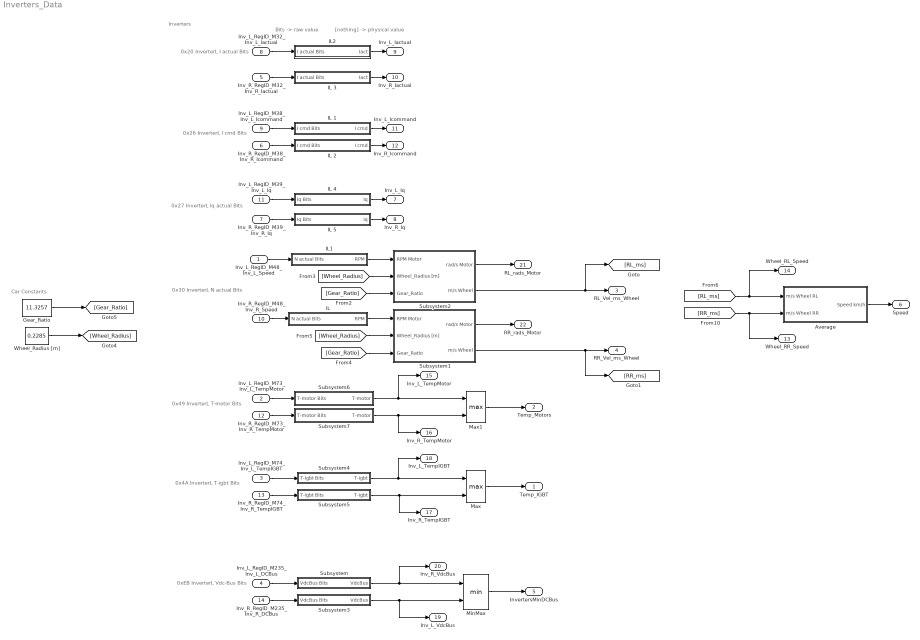
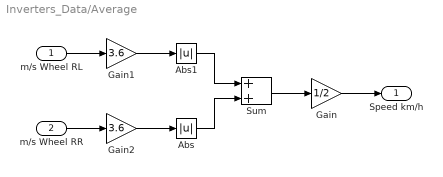
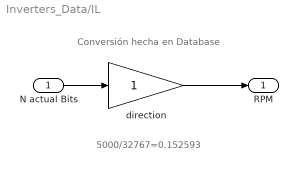
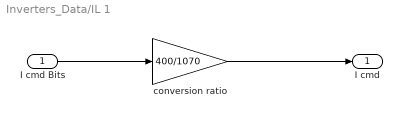
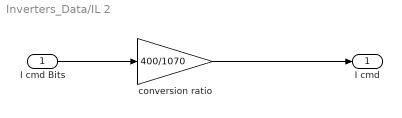
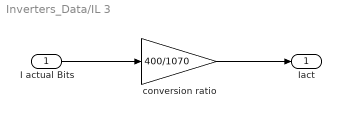
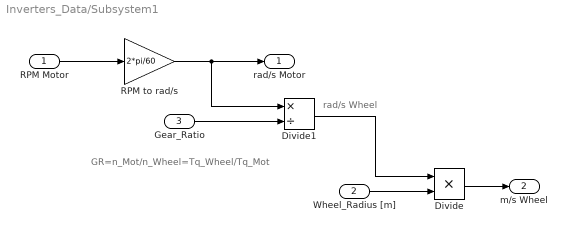
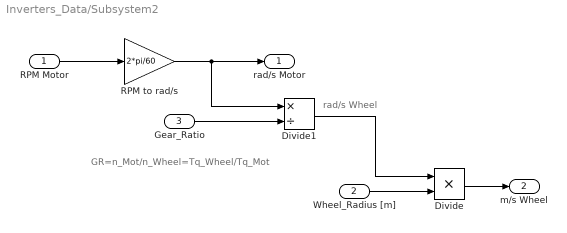
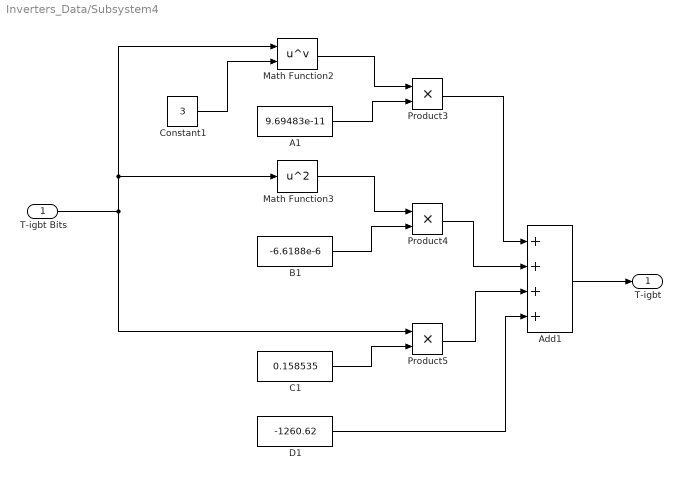
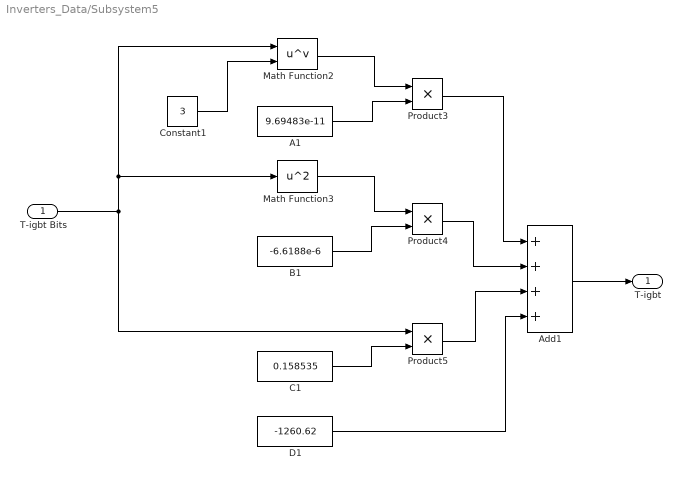
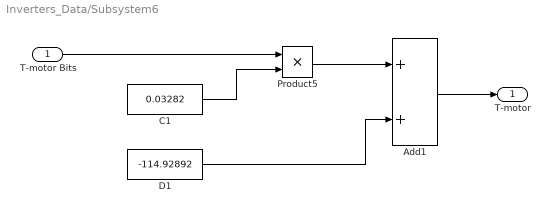
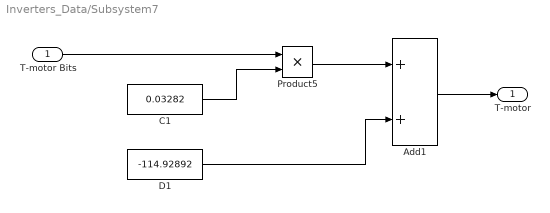
== system Inverters_Data/IL 4 ==
  "Iq Bits " : Inport
  conversion ratio : Gain  Gain=400/1070
  Iq : Outport  VectorParamsAs1DForOutWhenUnconnected=off
  wires:
  "Iq Bits "/1 -> conversion ratio/1
  conversion ratio/1 -> Iq/1

== system Inverters_Data/IL 5 ==
  "Iq Bits " : Inport
  conversion ratio : Gain  Gain=400/1070
  Iq : Outport  VectorParamsAs1DForOutWhenUnconnected=off
  wires:
  "Iq Bits "/1 -> conversion ratio/1
  conversion ratio/1 -> Iq/1

== system Inverters_Data/IL1 ==
  note: 5000/32767=0.152593
  note: Conversión hecha en Database
  "N actual Bits " : Inport
  direction : Gain
  RPM : Outport  VectorParamsAs1DForOutWhenUnconnected=off
  wires:
  direction/1 -> RPM/1
  "N actual Bits "/1 -> direction/1

== system Inverters_Data/IL2 ==
  "I actual Bits " : Inport
  conversion ratio1 : Gain  Gain=400/1070
  Iact : Outport  VectorParamsAs1DForOutWhenUnconnected=off
  wires:
  "I actual Bits "/1 -> conversion ratio1/1
  conversion ratio1/1 -> Iact/1

== system Inverters_Data/Subsystem ==
  note: Conversión hecha en database: "Inv_L_DCBus" (experimental)
  VdcBus Bits : Inport
  Gain : Gain
  VdcBus : Outport  VectorParamsAs1DForOutWhenUnconnected=off
  wires:
  VdcBus Bits/1 -> Gain/1
  Gain/1 -> VdcBus/1

== system Inverters_Data/Subsystem3 ==
  note: Conversión hecha en database: "Inv_R_DCBus" (experimental)
  VdcBus Bits : Inport
  Gain : Gain
  VdcBus : Outport  VectorParamsAs1DForOutWhenUnconnected=off
  wires:
  VdcBus Bits/1 -> Gain/1
  Gain/1 -> VdcBus/1

/*
 * Inverters_Data.c
 *
 * Academic License - for use in teaching, academic research, and meeting
 * course requirements at degree granting institutions only.  Not for
 * government, commercial, or other organizational use.
 *
 * Code generation for model "Inverters_Data".
 *
 * Model version              : 10.11
 * Simulink Coder version : 9.7 (R2022a) 13-Nov-2021
 * C source code generated on : Thu Mar 28 14:56:23 2024
 *
 * Target selection: irt.tlc
 * Note: GRT includes extra infrastructure and instrumentation for prototyping
 * Embedded hardware selection: Intel->x86-64 (Windows64)
 * Code generation objectives: Unspecified
 * Validation result: Not run
 */

#include "Inverters_Data.h"
#include "rt_powd_snf.h"
#include <math.h>
#include "rtwtypes.h"
#include <string.h>
#include "rt_nonfinite.h"

/* External inputs (root inport signals with default storage) */
ExtU_Inverters_Data_T Inverters_Data_U;

/* External outputs (root outports fed by signals with default storage) */
ExtY_Inverters_Data_T Inverters_Data_Y;

/* Real-time model */
static RT_MODEL_Inverters_Data_T Inverters_Data_M_;
RT_MODEL_Inverters_Data_T *const Inverters_Data_M = &Inverters_Data_M_;

/* Model output function */
static void Inverters_Data_output(void)
{
  real_T rtb_Divide;
  real_T rtb_Divide_c;
  real_T rtb_RPMtorads;
  real_T rtb_RPMtorads_n;

  /* Sum: '<S14>/Add1' incorporates:
   *  Constant: '<S14>/A1'
   *  Constant: '<S14>/B1'
   *  Constant: '<S14>/C1'
   *  Constant: '<S14>/Constant1'
   *  Constant: '<S14>/D1'
   *  Inport: '<Root>/Inv_L_RegID_M74_Inv_L_TempIGBT'
   *  Math: '<S14>/Math Function2'
   *  Math: '<S14>/Math Function3'
   *  Product: '<S14>/Product3'
   *  Product: '<S14>/Product4'
   *  Product: '<S14>/Product5'
   */
  rtb_Divide_c = ((Inverters_Data_U.Inv_L_RegID_M74_Inv_L_TempIGBT *
                   Inverters_Data_U.Inv_L_RegID_M74_Inv_L_TempIGBT * -6.6188E-6
                   + rt_powd_snf(Inverters_Data_U.Inv_L_RegID_M74_Inv_L_TempIGBT,
    3.0) * 9.69483E-11) + Inverters_Data_U.Inv_L_RegID_M74_Inv_L_TempIGBT *
                  0.158535) + -1260.62;

  /* Sum: '<S15>/Add1' incorporates:
   *  Constant: '<S15>/A1'
   *  Constant: '<S15>/B1'
   *  Constant: '<S15>/C1'
   *  Constant: '<S15>/Constant1'
   *  Constant: '<S15>/D1'
   *  Inport: '<Root>/Inv_R_RegID_M74_Inv_R_TempIGBT'
   *  Math: '<S15>/Math Function2'
   *  Math: '<S15>/Math Function3'
   *  Product: '<S15>/Product3'
   *  Product: '<S15>/Product4'
   *  Product: '<S15>/Product5'
   */
  rtb_RPMtorads_n = ((Inverters_Data_U.Inv_R_RegID_M74_Inv_R_TempIGBT *
                      Inverters_Data_U.Inv_R_RegID_M74_Inv_R_TempIGBT *
                      -6.6188E-6 + rt_powd_snf
                      (Inverters_Data_U.Inv_R_RegID_M74_Inv_R_TempIGBT, 3.0) *
                      9.69483E-11) +
                     Inverters_Data_U.Inv_R_RegID_M74_Inv_R_TempIGBT * 0.158535)
    + -1260.62;

  /* Outport: '<Root>/Temp_IGBT' incorporates:
   *  MinMax: '<Root>/Max'
   */
  Inverters_Data_Y.Temp_IGBT = fmax(rtb_Divide_c, rtb_RPMtorads_n);

  /* Outport: '<Root>/Inv_R_TempIGBT' */
  Inverters_Data_Y.Inv_R_TempIGBT = rtb_RPMtorads_n;

  /* Outport: '<Root>/Inv_L_TempIGBT' */
  Inverters_Data_Y.Inv_L_TempIGBT = rtb_Divide_c;

  /* Sum: '<S16>/Add1' incorporates:
   *  Constant: '<S16>/C1'
   *  Constant: '<S16>/D1'
   *  Inport: '<Root>/Inv_L_RegID_M73_Inv_L_TempMotor'
   *  Product: '<S16>/Product5'
   */
  rtb_RPMtorads_n = Inverters_Data_U.Inv_L_RegID_M73_Inv_L_TempMotor * 0.03282 +
    -114.92892;

  /* Sum: '<S17>/Add1' incorporates:
   *  Constant: '<S17>/C1'
   *  Constant: '<S17>/D1'
   *  Inport: '<Root>/Inv_R_RegID_M73_Inv_R_TempMotor'
   *  Product: '<S17>/Product5'
   */
  rtb_Divide_c = Inverters_Data_U.Inv_R_RegID_M73_Inv_R_TempMotor * 0.03282 +
    -114.92892;

  /* Outport: '<Root>/Temp_Motors' incorporates:
   *  MinMax: '<Root>/Max1'
   */
  Inverters_Data_Y.Temp_Motors = fmax(rtb_RPMtorads_n, rtb_Divide_c);

  /* Outport: '<Root>/Inv_L_TempMotor' */
  Inverters_Data_Y.Inv_L_TempMotor = rtb_RPMtorads_n;

  /* Outport: '<Root>/Inv_R_TempMotor' */
  Inverters_Data_Y.Inv_R_TempMotor = rtb_Divide_c;

  /* Gain: '<S12>/RPM to rad//s' incorporates:
   *  Inport: '<Root>/Inv_L_RegID_M48_Inv_L_Speed'
   */
  rtb_RPMtorads_n = 0.10471975511965977 *
    Inverters_Data_U.Inv_L_RegID_M48_Inv_L_Speed;

  /* Product: '<S12>/Divide' incorporates:
   *  Constant: '<Root>/Gear_Ratio'
   *  Constant: '<Root>/Wheel_Radius [m]'
   *  Product: '<S12>/Divide1'
   */
  rtb_Divide_c = rtb_RPMtorads_n / 11.3257 * 0.2285;

  /* Outport: '<Root>/RL_Vel_ms_Wheel' */
  Inverters_Data_Y.RL_Vel_ms_Wheel = rtb_Divide_c;

  /* Gain: '<S11>/RPM to rad//s' incorporates:
   *  Inport: '<Root>/Inv_R_RegID_M48_Inv_R_Speed'
   */
  rtb_RPMtorads = 0.10471975511965977 *
    Inverters_Data_U.Inv_R_RegID_M48_Inv_R_Speed;

  /* Product: '<S11>/Divide' incorporates:
   *  Constant: '<Root>/Gear_Ratio'
   *  Constant: '<Root>/Wheel_Radius [m]'
   *  Product: '<S11>/Divide1'
   */
  rtb_Divide = rtb_RPMtorads / 11.3257 * 0.2285;

  /* Outport: '<Root>/RR_Vel_ms_Wheel' */
  Inverters_Data_Y.RR_Vel_ms_Wheel = rtb_Divide;

  /* Outport: '<Root>/Speed' incorporates:
   *  Abs: '<S1>/Abs'
   *  Abs: '<S1>/Abs1'
   *  Gain: '<S1>/Gain'
   *  Gain: '<S1>/Gain1'
   *  Gain: '<S1>/Gain2'
   *  Sum: '<S1>/Sum'
   */
  Inverters_Data_Y.Speed = (fabs(3.6 * rtb_Divide_c) + fabs(3.6 * rtb_Divide)) *
    0.5;

  /* Outport: '<Root>/Wheel_RR_Speed' */
  Inverters_Data_Y.Wheel_RR_Speed = rtb_Divide;

  /* Outport: '<Root>/Wheel_RL_Speed' */
  Inverters_Data_Y.Wheel_RL_Speed = rtb_Divide_c;

  /* Outport: '<Root>/RL_rads_Motor' */
  Inverters_Data_Y.RL_rads_Motor = rtb_RPMtorads_n;

  /* Outport: '<Root>/RR_rads_Motor' */
  Inverters_Data_Y.RR_rads_Motor = rtb_RPMtorads;

  /* Outport: '<Root>/InvertersMinDCBus' incorporates:
   *  Inport: '<Root>/Inv_L_RegID_M235_Inv_L_DCBus'
   *  Inport: '<Root>/Inv_R_RegID_M235_Inv_R_DCBus'
   *  MinMax: '<Root>/MinMax'
   */
  Inverters_Data_Y.InvertersMinDCBus = fmin
    (Inverters_Data_U.Inv_L_RegID_M235_Inv_L_DCBus,
     Inverters_Data_U.Inv_R_RegID_M235_Inv_R_DCBus);

  /* Outport: '<Root>/Inv_L_VdcBus' incorporates:
   *  Inport: '<Root>/Inv_R_RegID_M235_Inv_R_DCBus'
   */
  Inverters_Data_Y.Inv_L_VdcBus = Inverters_Data_U.Inv_R_RegID_M235_Inv_R_DCBus;

  /* Outport: '<Root>/Inv_R_VdcBus' incorporates:
   *  Inport: '<Root>/Inv_L_RegID_M235_Inv_L_DCBus'
   */
  Inverters_Data_Y.Inv_R_VdcBus = Inverters_Data_U.Inv_L_RegID_M235_Inv_L_DCBus;

  /* Outport: '<Root>/Inv_L_Iq' incorporates:
   *  Gain: '<S6>/conversion ratio'
   *  Inport: '<Root>/Inv_L_RegID_M39_Inv_L_Iq'
   */
  Inverters_Data_Y.Inv_L_Iq = 0.37383177570093457 *
    Inverters_Data_U.Inv_L_RegID_M39_Inv_L_Iq;

  /* Outport: '<Root>/Inv_R_Iq' incorporates:
   *  Gain: '<S7>/conversion ratio'
   *  Inport: '<Root>/Inv_R_RegID_M39_Inv_R_Iq'
   */
  Inverters_Data_Y.Inv_R_Iq = 0.37383177570093457 *
    Inverters_Data_U.Inv_R_RegID_M39_Inv_R_Iq;

  /* Outport: '<Root>/Inv_L_Iactual' incorporates:
   *  Gain: '<S9>/conversion ratio1'
   *  Inport: '<Root>/Inv_L_RegID_M32_Inv_L_Iactual'
   */
  Inverters_Data_Y.Inv_L_Iactual = 0.37383177570093457 *
    Inverters_Data_U.Inv_L_RegID_M32_Inv_L_Iactual;

  /* Outport: '<Root>/Inv_R_Iactual' incorporates:
   *  Gain: '<S5>/conversion ratio'
   *  Inport: '<Root>/Inv_R_RegID_M32_Inv_R_Iactual'
   */
  Inverters_Data_Y.Inv_R_Iactual = 0.37383177570093457 *
    Inverters_Data_U.Inv_R_RegID_M32_Inv_R_Iactual;

  /* Outport: '<Root>/Inv_L_Icommand' incorporates:
   *  Gain: '<S3>/conversion ratio'
   *  Inport: '<Root>/Inv_L_RegID_M38_Inv_L_Icommand'
   */
  Inverters_Data_Y.Inv_L_Icommand = 0.37383177570093457 *
    Inverters_Data_U.Inv_L_RegID_M38_Inv_L_Icommand;

  /* Outport: '<Root>/Inv_R_Icommand' incorporates:
   *  Gain: '<S4>/conversion ratio'
   *  Inport: '<Root>/Inv_R_RegID_M38_Inv_R_Icommand'
   */
  Inverters_Data_Y.Inv_R_Icommand = 0.37383177570093457 *
    Inverters_Data_U.Inv_R_RegID_M38_Inv_R_Icommand;
}

/* Model update function */
static void Inverters_Data_update(void)
{
  /* Update absolute time for base rate */
  /* The "clockTick0" counts the number of times the code of this task has
   * been executed. The absolute time is the multiplication of "clockTick0"
   * and "Timing.stepSize0". Size of "clockTick0" ensures timer will not
   * overflow during the application lifespan selected.
   * Timer of this task consists of two 32 bit unsigned integers.
   * The two integers represent the low bits Timing.clockTick0 and the high bits
   * Timing.clockTickH0. When the low bit overflows to 0, the high bits increment.
   */
  if (!(++Inverters_Data_M->Timing.clockTick0)) {
    ++Inverters_Data_M->Timing.clockTickH0;
  }

  Inverters_Data_M->Timing.t[0] = Inverters_Data_M->Timing.clockTick0 *
    Inverters_Data_M->Timing.stepSize0 + Inverters_Data_M->Timing.clockTickH0 *
    Inverters_Data_M->Timing.stepSize0 * 4294967296.0;
}
